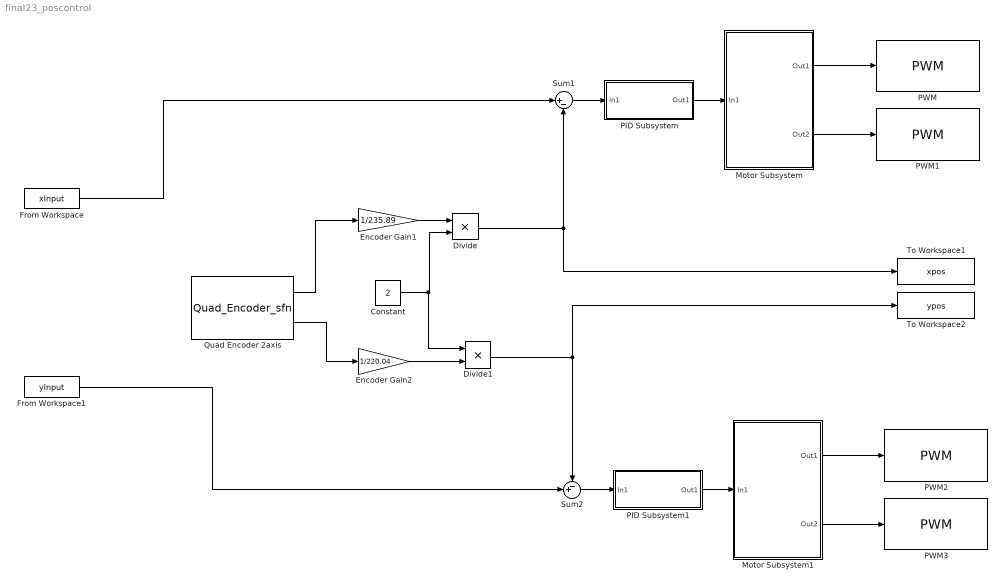
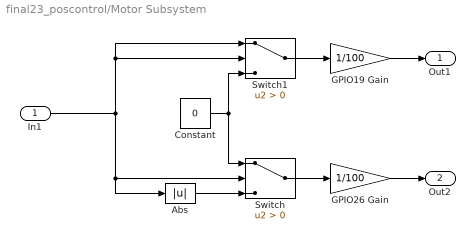
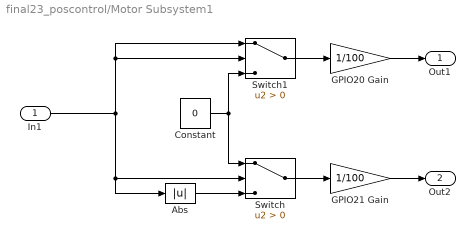
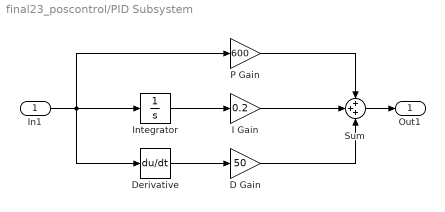
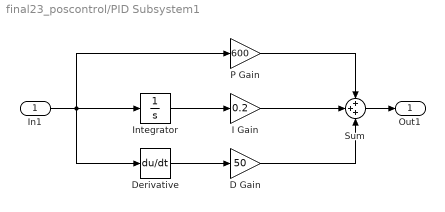
/*
 * final23_poscontrol.c
 *
 * Academic License - for use in teaching, academic research, and meeting
 * course requirements at degree granting institutions only.  Not for
 * government, commercial, or other organizational use.
 *
 * Code generation for model "final23_poscontrol".
 *
 * Model version              : 1.39
 * Simulink Coder version : 9.5 (R2021a) 14-Nov-2020
 * C source code generated on : Sat Dec 16 01:13:02 2023
 *
 * Target selection: ert.tlc
 * Note: GRT includes extra infrastructure and instrumentation for prototyping
 * Embedded hardware selection: ARM Compatible->ARM Cortex
 * Code generation objectives: Unspecified
 * Validation result: Not run
 */

#include "final23_poscontrol.h"
#include "final23_poscontrol_private.h"

/* Block signals (default storage) */
B_final23_poscontrol_T final23_poscontrol_B;

/* Continuous states */
X_final23_poscontrol_T final23_poscontrol_X;

/* Block states (default storage) */
DW_final23_poscontrol_T final23_poscontrol_DW;

/* Real-time model */
static RT_MODEL_final23_poscontrol_T final23_poscontrol_M_;
RT_MODEL_final23_poscontrol_T *const final23_poscontrol_M =
  &final23_poscontrol_M_;

/*
 * This function updates continuous states using the ODE3 fixed-step
 * solver algorithm
 */
static void rt_ertODEUpdateContinuousStates(RTWSolverInfo *si )
{
  /* Solver Matrices */
  static const real_T rt_ODE3_A[3] = {
    1.0/2.0, 3.0/4.0, 1.0
  };

  static const real_T rt_ODE3_B[3][3] = {
    { 1.0/2.0, 0.0, 0.0 },

    { 0.0, 3.0/4.0, 0.0 },

    { 2.0/9.0, 1.0/3.0, 4.0/9.0 }
  };

  time_T t = rtsiGetT(si);
  time_T tnew = rtsiGetSolverStopTime(si);
  time_T h = rtsiGetStepSize(si);
  real_T *x = rtsiGetContStates(si);
  ODE3_IntgData *id = (ODE3_IntgData *)rtsiGetSolverData(si);
  real_T *y = id->y;
  real_T *f0 = id->f[0];
  real_T *f1 = id->f[1];
  real_T *f2 = id->f[2];
  real_T hB[3];
  int_T i;
  int_T nXc = 2;
  rtsiSetSimTimeStep(si,MINOR_TIME_STEP);

  /* Save the state values at time t in y, we'll use x as ynew. */
  (void) memcpy(y, x,
                (uint_T)nXc*sizeof(real_T));

  /* Assumes that rtsiSetT and ModelOutputs are up-to-date */
  /* f0 = f(t,y) */
  rtsiSetdX(si, f0);
  final23_poscontrol_derivatives();

  /* f(:,2) = feval(odefile, t + hA(1), y + f*hB(:,1), args(:)(*)); */
  hB[0] = h * rt_ODE3_B[0][0];
  for (i = 0; i < nXc; i++) {
    x[i] = y[i] + (f0[i]*hB[0]);
  }

  rtsiSetT(si, t + h*rt_ODE3_A[0]);
  rtsiSetdX(si, f1);
  final23_poscontrol_step();
  final23_poscontrol_derivatives();

  /* f(:,3) = feval(odefile, t + hA(2), y + f*hB(:,2), args(:)(*)); */
  for (i = 0; i <= 1; i++) {
    hB[i] = h * rt_ODE3_B[1][i];
  }

  for (i = 0; i < nXc; i++) {
    x[i] = y[i] + (f0[i]*hB[0] + f1[i]*hB[1]);
  }

  rtsiSetT(si, t + h*rt_ODE3_A[1]);
  rtsiSetdX(si, f2);
  final23_poscontrol_step();
  final23_poscontrol_derivatives();

  /* tnew = t + hA(3);
     ynew = y + f*hB(:,3); */
  for (i = 0; i <= 2; i++) {
    hB[i] = h * rt_ODE3_B[2][i];
  }

  for (i = 0; i < nXc; i++) {
    x[i] = y[i] + (f0[i]*hB[0] + f1[i]*hB[1] + f2[i]*hB[2]);
  }

  rtsiSetT(si, tnew);
  rtsiSetSimTimeStep(si,MAJOR_TIME_STEP);
}

/* Model step function */
void final23_poscontrol_step(void)
{
  if (rtmIsMajorTimeStep(final23_poscontrol_M)) {
    /* set solver stop time */
    if (!(final23_poscontrol_M->Timing.clockTick0+1)) {
      rtsiSetSolverStopTime(&final23_poscontrol_M->solverInfo,
                            ((final23_poscontrol_M->Timing.clockTickH0 + 1) *
        final23_poscontrol_M->Timing.stepSize0 * 4294967296.0));
    } else {
      rtsiSetSolverStopTime(&final23_poscontrol_M->solverInfo,
                            ((final23_poscontrol_M->Timing.clockTick0 + 1) *
        final23_poscontrol_M->Timing.stepSize0 +
        final23_poscontrol_M->Timing.clockTickH0 *
        final23_poscontrol_M->Timing.stepSize0 * 4294967296.0));
    }
  }                                    /* end MajorTimeStep */

  /* Update absolute time of base rate at minor time step */
  if (rtmIsMinorTimeStep(final23_poscontrol_M)) {
    final23_poscontrol_M->Timing.t[0] = rtsiGetT
      (&final23_poscontrol_M->solverInfo);
  }

  {
    real_T rtb_Sum;
    real_T rtb_Sum_p;
    real_T rtb_Switch;
    real_T *lastU;
    if (rtmIsMajorTimeStep(final23_poscontrol_M)) {
      /* FromWorkspace: '<Root>/From Workspace' */
      {
        real_T *pDataValues = (real_T *)
          final23_poscontrol_DW.FromWorkspace_PWORK.DataPtr;
        real_T *pTimeValues = (real_T *)
          final23_poscontrol_DW.FromWorkspace_PWORK.TimePtr;
        int_T currTimeIndex =
          final23_poscontrol_DW.FromWorkspace_IWORK.PrevIndex;
        real_T t = (((final23_poscontrol_M->Timing.clockTick1+
                      final23_poscontrol_M->Timing.clockTickH1* 4294967296.0)) *
                    0.001);

        /* Get index */
        if (t <= pTimeValues[0]) {
          currTimeIndex = 0;
        } else if (t >= pTimeValues[45473]) {
          currTimeIndex = 45472;
        } else {
          if (t < pTimeValues[currTimeIndex]) {
            while (t < pTimeValues[currTimeIndex]) {
              currTimeIndex--;
            }
          } else {
            while (t >= pTimeValues[currTimeIndex + 1]) {
              currTimeIndex++;
            }
          }
        }

        final23_poscontrol_DW.FromWorkspace_IWORK.PrevIndex = currTimeIndex;

        /* Post output */
        {
          real_T t1 = pTimeValues[currTimeIndex];
          real_T t2 = pTimeValues[currTimeIndex + 1];
          if (t1 == t2) {
            if (t < t1) {
              final23_poscontrol_B.FromWorkspace = pDataValues[currTimeIndex];
            } else {
              final23_poscontrol_B.FromWorkspace = pDataValues[currTimeIndex + 1];
            }
          } else {
            real_T f1 = (t2 - t) / (t2 - t1);
            real_T f2 = 1.0 - f1;
            real_T d1;
            real_T d2;
            int_T TimeIndex = currTimeIndex;
            d1 = pDataValues[TimeIndex];
            d2 = pDataValues[TimeIndex + 1];
            final23_poscontrol_B.FromWorkspace = (real_T) rtInterpolate(d1, d2,
              f1, f2);
            pDataValues += 45474;
          }
        }
      }
    }

    /* S-Function (Quad_Encoder_sfn): '<Root>/Quad Encoder 2axis' */
    Quad_Encoder_sfn_Outputs_wrapper(&final23_poscontrol_B.QuadEncoder2axis_o1,
      &final23_poscontrol_B.QuadEncoder2axis_o2,
      &final23_poscontrol_DW.QuadEncoder2axis_DSTATE,
      &final23_poscontrol_P.QuadEncoder2axis_P1, 1,
      &final23_poscontrol_P.QuadEncoder2axis_P2, 1,
      &final23_poscontrol_P.QuadEncoder2axis_P3, 1,
      &final23_poscontrol_P.QuadEncoder2axis_P4, 1,
      &final23_poscontrol_P.QuadEncoder2axis_P5, 1,
      &final23_poscontrol_P.QuadEncoder2axis_P6, 1);

    /* Gain: '<Root>/Encoder Gain1' */
    final23_poscontrol_B.EncoderGain1 = (int64_T)
      final23_poscontrol_P.EncoderGain1_Gain *
      final23_poscontrol_B.QuadEncoder2axis_o1;

    /* Product: '<Root>/Divide' incorporates:
     *  Constant: '<Root>/Constant'
     *  Gain: '<Root>/Encoder Gain1'
     */
    final23_poscontrol_B.Divide = (real_T)final23_poscontrol_B.EncoderGain1 *
      3.637978807091713E-12 * final23_poscontrol_P.Constant_Value;

    /* Sum: '<Root>/Sum1' */
    final23_poscontrol_B.Sum1 = final23_poscontrol_B.FromWorkspace -
      final23_poscontrol_B.Divide;

    /* Derivative: '<S3>/Derivative' incorporates:
     *  Derivative: '<S4>/Derivative'
     */
    rtb_Sum_p = final23_poscontrol_M->Timing.t[0];
    if ((final23_poscontrol_DW.TimeStampA >= rtb_Sum_p) &&
        (final23_poscontrol_DW.TimeStampB >= rtb_Sum_p)) {
      rtb_Switch = 0.0;
    } else {
      rtb_Switch = final23_poscontrol_DW.TimeStampA;
      lastU = &final23_poscontrol_DW.LastUAtTimeA;
      if (final23_poscontrol_DW.TimeStampA < final23_poscontrol_DW.TimeStampB) {
        if (final23_poscontrol_DW.TimeStampB < rtb_Sum_p) {
          rtb_Switch = final23_poscontrol_DW.TimeStampB;
          lastU = &final23_poscontrol_DW.LastUAtTimeB;
        }
      } else if (final23_poscontrol_DW.TimeStampA >= rtb_Sum_p) {
        rtb_Switch = final23_poscontrol_DW.TimeStampB;
        lastU = &final23_poscontrol_DW.LastUAtTimeB;
      }

      rtb_Switch = (final23_poscontrol_B.Sum1 - *lastU) / (rtb_Sum_p -
        rtb_Switch);
    }

    /* End of Derivative: '<S3>/Derivative' */

    /* Sum: '<S3>/Sum' incorporates:
     *  Gain: '<S3>/D Gain'
     *  Gain: '<S3>/I Gain'
     *  Gain: '<S3>/P Gain'
     *  Integrator: '<S3>/Integrator'
     */
    rtb_Sum = (final23_poscontrol_P.PGain_Gain * final23_poscontrol_B.Sum1 +
               final23_poscontrol_P.IGain_Gain *
               final23_poscontrol_X.Integrator_CSTATE) +
      final23_poscontrol_P.DGain_Gain * rtb_Switch;

    /* Switch: '<S1>/Switch1' incorporates:
     *  Constant: '<S1>/Constant'
     */
    if (rtb_Sum > final23_poscontrol_P.Switch1_Threshold) {
      rtb_Switch = rtb_Sum;
    } else {
      rtb_Switch = final23_poscontrol_P.Constant_Value_d;
    }

    /* End of Switch: '<S1>/Switch1' */

    /* Gain: '<S1>/GPIO19 Gain' */
    rtb_Switch *= final23_poscontrol_P.GPIO19Gain_Gain;

    /* MATLABSystem: '<Root>/PWM' */
    if (!(rtb_Switch < 1.0)) {
      rtb_Switch = 1.0;
    }

    if (!(rtb_Switch > 0.0)) {
      rtb_Switch = 0.0;
    }

    EXT_PWMBlock_setDutyCycle(final23_poscontrol_DW.obj_g.PinNumber, rtb_Switch);

    /* End of MATLABSystem: '<Root>/PWM' */

    /* Switch: '<S1>/Switch' incorporates:
     *  Abs: '<S1>/Abs'
     *  Constant: '<S1>/Constant'
     */
    if (rtb_Sum > final23_poscontrol_P.Switch_Threshold) {
      rtb_Sum = final23_poscontrol_P.Constant_Value_d;
    } else {
      rtb_Sum = fabs(rtb_Sum);
    }

    /* End of Switch: '<S1>/Switch' */

    /* Gain: '<S1>/GPIO26 Gain' */
    rtb_Switch = final23_poscontrol_P.GPIO26Gain_Gain * rtb_Sum;

    /* MATLABSystem: '<Root>/PWM1' */
    if (!(rtb_Switch < 1.0)) {
      rtb_Switch = 1.0;
    }

    if (!(rtb_Switch > 0.0)) {
      rtb_Switch = 0.0;
    }

    EXT_PWMBlock_setDutyCycle(final23_poscontrol_DW.obj_e.PinNumber, rtb_Switch);

    /* End of MATLABSystem: '<Root>/PWM1' */
    if (rtmIsMajorTimeStep(final23_poscontrol_M)) {
    }

    /* Gain: '<Root>/Encoder Gain2' */
    final23_poscontrol_B.EncoderGain2 = (int64_T)
      final23_poscontrol_P.EncoderGain2_Gain *
      final23_poscontrol_B.QuadEncoder2axis_o2;

    /* Product: '<Root>/Divide1' incorporates:
     *  Constant: '<Root>/Constant'
     *  Gain: '<Root>/Encoder Gain2'
     */
    final23_poscontrol_B.Divide1 = (real_T)final23_poscontrol_B.EncoderGain2 *
      3.637978807091713E-12 * final23_poscontrol_P.Constant_Value;
    if (rtmIsMajorTimeStep(final23_poscontrol_M)) {
      /* FromWorkspace: '<Root>/From Workspace1' */
      {
        real_T *pDataValues = (real_T *)
          final23_poscontrol_DW.FromWorkspace1_PWORK.DataPtr;
        real_T *pTimeValues = (real_T *)
          final23_poscontrol_DW.FromWorkspace1_PWORK.TimePtr;
        int_T currTimeIndex =
          final23_poscontrol_DW.FromWorkspace1_IWORK.PrevIndex;
        real_T t = (((final23_poscontrol_M->Timing.clockTick1+
                      final23_poscontrol_M->Timing.clockTickH1* 4294967296.0)) *
                    0.001);

        /* Get index */
        if (t <= pTimeValues[0]) {
          currTimeIndex = 0;
        } else if (t >= pTimeValues[45473]) {
          currTimeIndex = 45472;
        } else {
          if (t < pTimeValues[currTimeIndex]) {
            while (t < pTimeValues[currTimeIndex]) {
              currTimeIndex--;
            }
          } else {
            while (t >= pTimeValues[currTimeIndex + 1]) {
              currTimeIndex++;
            }
          }
        }

        final23_poscontrol_DW.FromWorkspace1_IWORK.PrevIndex = currTimeIndex;

        /* Post output */
        {
          real_T t1 = pTimeValues[currTimeIndex];
          real_T t2 = pTimeValues[currTimeIndex + 1];
          if (t1 == t2) {
            if (t < t1) {
              final23_poscontrol_B.FromWorkspace1 = pDataValues[currTimeIndex];
            } else {
              final23_poscontrol_B.FromWorkspace1 = pDataValues[currTimeIndex +
                1];
            }
          } else {
            real_T f1 = (t2 - t) / (t2 - t1);
            real_T f2 = 1.0 - f1;
            real_T d1;
            real_T d2;
            int_T TimeIndex = currTimeIndex;
            d1 = pDataValues[TimeIndex];
            d2 = pDataValues[TimeIndex + 1];
            final23_poscontrol_B.FromWorkspace1 = (real_T) rtInterpolate(d1, d2,
              f1, f2);
            pDataValues += 45474;
          }
        }
      }
    }

    /* Sum: '<Root>/Sum2' */
    final23_poscontrol_B.Sum2 = final23_poscontrol_B.FromWorkspace1 -
      final23_poscontrol_B.Divide1;

    /* Derivative: '<S4>/Derivative' */
    if ((final23_poscontrol_DW.TimeStampA_k >= rtb_Sum_p) &&
        (final23_poscontrol_DW.TimeStampB_k >= rtb_Sum_p)) {
      rtb_Switch = 0.0;
    } else {
      rtb_Switch = final23_poscontrol_DW.TimeStampA_k;
      lastU = &final23_poscontrol_DW.LastUAtTimeA_o;
      if (final23_poscontrol_DW.TimeStampA_k <
          final23_poscontrol_DW.TimeStampB_k) {
        if (final23_poscontrol_DW.TimeStampB_k < rtb_Sum_p) {
          rtb_Switch = final23_poscontrol_DW.TimeStampB_k;
          lastU = &final23_poscontrol_DW.LastUAtTimeB_n;
        }
      } else if (final23_poscontrol_DW.TimeStampA_k >= rtb_Sum_p) {
        rtb_Switch = final23_poscontrol_DW.TimeStampB_k;
        lastU = &final23_poscontrol_DW.LastUAtTimeB_n;
      }

      rtb_Switch = (final23_poscontrol_B.Sum2 - *lastU) / (rtb_Sum_p -
        rtb_Switch);
    }

    /* Sum: '<S4>/Sum' incorporates:
     *  Gain: '<S4>/D Gain'
     *  Gain: '<S4>/I Gain'
     *  Gain: '<S4>/P Gain'
     *  Integrator: '<S4>/Integrator'
     */
    rtb_Sum_p = (final23_poscontrol_P.PGain_Gain_b * final23_poscontrol_B.Sum2 +
                 final23_poscontrol_P.IGain_Gain_d *
                 final23_poscontrol_X.Integrator_CSTATE_l) +
      final23_poscontrol_P.DGain_Gain_k * rtb_Switch;

    /* Switch: '<S2>/Switch1' incorporates:
     *  Constant: '<S2>/Constant'
     */
    if (rtb_Sum_p > final23_poscontrol_P.Switch1_Threshold_c) {
      rtb_Switch = rtb_Sum_p;
    } else {
      rtb_Switch = final23_poscontrol_P.Constant_Value_e;
    }

    /* End of Switch: '<S2>/Switch1' */

    /* Gain: '<S2>/GPIO20 Gain' */
    rtb_Switch *= final23_poscontrol_P.GPIO20Gain_Gain;

    /* MATLABSystem: '<Root>/PWM2' */
    if (!(rtb_Switch < 1.0)) {
      rtb_Switch = 1.0;
    }

    if (!(rtb_Switch > 0.0)) {
      rtb_Switch = 0.0;
    }

    EXT_PWMBlock_setDutyCycle(final23_poscontrol_DW.obj_p.PinNumber, rtb_Switch);

    /* End of MATLABSystem: '<Root>/PWM2' */

    /* Switch: '<S2>/Switch' incorporates:
     *  Abs: '<S2>/Abs'
     *  Constant: '<S2>/Constant'
     */
    if (rtb_Sum_p > final23_poscontrol_P.Switch_Threshold_m) {
      rtb_Sum_p = final23_poscontrol_P.Constant_Value_e;
    } else {
      rtb_Sum_p = fabs(rtb_Sum_p);
    }

    /* End of Switch: '<S2>/Switch' */

    /* Gain: '<S2>/GPIO21 Gain' */
    rtb_Switch = final23_poscontrol_P.GPIO21Gain_Gain * rtb_Sum_p;

    /* MATLABSystem: '<Root>/PWM3' */
    if (!(rtb_Switch < 1.0)) {
      rtb_Switch = 1.0;
    }

    if (!(rtb_Switch > 0.0)) {
      rtb_Switch = 0.0;
    }

    EXT_PWMBlock_setDutyCycle(final23_poscontrol_DW.obj.PinNumber, rtb_Switch);

    /* End of MATLABSystem: '<Root>/PWM3' */
    if (rtmIsMajorTimeStep(final23_poscontrol_M)) {
    }
  }

  if (rtmIsMajorTimeStep(final23_poscontrol_M)) {
    real_T *lastU;

    /* Update for S-Function (Quad_Encoder_sfn): '<Root>/Quad Encoder 2axis' */

    /* S-Function "Quad_Encoder_sfn_wrapper" Block: <Root>/Quad Encoder 2axis */
    Quad_Encoder_sfn_Update_wrapper(&final23_poscontrol_B.QuadEncoder2axis_o1,
      &final23_poscontrol_B.QuadEncoder2axis_o2,
      &final23_poscontrol_DW.QuadEncoder2axis_DSTATE,
      &final23_poscontrol_P.QuadEncoder2axis_P1, 1,
      &final23_poscontrol_P.QuadEncoder2axis_P2, 1,
      &final23_poscontrol_P.QuadEncoder2axis_P3, 1,
      &final23_poscontrol_P.QuadEncoder2axis_P4, 1,
      &final23_poscontrol_P.QuadEncoder2axis_P5, 1,
      &final23_poscontrol_P.QuadEncoder2axis_P6, 1);

    /* Update for Derivative: '<S3>/Derivative' */
    if (final23_poscontrol_DW.TimeStampA == (rtInf)) {
      final23_poscontrol_DW.TimeStampA = final23_poscontrol_M->Timing.t[0];
      lastU = &final23_poscontrol_DW.LastUAtTimeA;
    } else if (final23_poscontrol_DW.TimeStampB == (rtInf)) {
      final23_poscontrol_DW.TimeStampB = final23_poscontrol_M->Timing.t[0];
      lastU = &final23_poscontrol_DW.LastUAtTimeB;
    } else if (final23_poscontrol_DW.TimeStampA <
               final23_poscontrol_DW.TimeStampB) {
      final23_poscontrol_DW.TimeStampA = final23_poscontrol_M->Timing.t[0];
      lastU = &final23_poscontrol_DW.LastUAtTimeA;
    } else {
      final23_poscontrol_DW.TimeStampB = final23_poscontrol_M->Timing.t[0];
      lastU = &final23_poscontrol_DW.LastUAtTimeB;
    }

    *lastU = final23_poscontrol_B.Sum1;

    /* End of Update for Derivative: '<S3>/Derivative' */

    /* Update for Derivative: '<S4>/Derivative' */
    if (final23_poscontrol_DW.TimeStampA_k == (rtInf)) {
      final23_poscontrol_DW.TimeStampA_k = final23_poscontrol_M->Timing.t[0];
      lastU = &final23_poscontrol_DW.LastUAtTimeA_o;
    } else if (final23_poscontrol_DW.TimeStampB_k == (rtInf)) {
      final23_poscontrol_DW.TimeStampB_k = final23_poscontrol_M->Timing.t[0];
      lastU = &final23_poscontrol_DW.LastUAtTimeB_n;
    } else if (final23_poscontrol_DW.TimeStampA_k <
               final23_poscontrol_DW.TimeStampB_k) {
      final23_poscontrol_DW.TimeStampA_k = final23_poscontrol_M->Timing.t[0];
      lastU = &final23_poscontrol_DW.LastUAtTimeA_o;
    } else {
      final23_poscontrol_DW.TimeStampB_k = final23_poscontrol_M->Timing.t[0];
      lastU = &final23_poscontrol_DW.LastUAtTimeB_n;
    }

    *lastU = final23_poscontrol_B.Sum2;

    /* End of Update for Derivative: '<S4>/Derivative' */

    /* External mode */
    rtExtModeUploadCheckTrigger(2);

    {                                  /* Sample time: [0.0s, 0.0s] */
      rtExtModeUpload(0, (real_T)final23_poscontrol_M->Timing.t[0]);
    }

    if (rtmIsMajorTimeStep(final23_poscontrol_M)) {/* Sample time: [0.001s, 0.0s] */
      rtExtModeUpload(1, (real_T)(((final23_poscontrol_M->Timing.clockTick1+
        final23_poscontrol_M->Timing.clockTickH1* 4294967296.0)) * 0.001));
    }
  }                                    /* end MajorTimeStep */

  if (rtmIsMajorTimeStep(final23_poscontrol_M)) {
    /* signal main to stop simulation */
    {                                  /* Sample time: [0.0s, 0.0s] */
      if ((rtmGetTFinal(final23_poscontrol_M)!=-1) &&
          !((rtmGetTFinal(final23_poscontrol_M)-
             (((final23_poscontrol_M->Timing.clockTick1+
                final23_poscontrol_M->Timing.clockTickH1* 4294967296.0)) * 0.001))
            > (((final23_poscontrol_M->Timing.clockTick1+
                 final23_poscontrol_M->Timing.clockTickH1* 4294967296.0)) *
               0.001) * (DBL_EPSILON))) {
        rtmSetErrorStatus(final23_poscontrol_M, "Simulation finished");
      }

      if (rtmGetStopRequested(final23_poscontrol_M)) {
        rtmSetErrorStatus(final23_poscontrol_M, "Simulation finished");
      }
    }

    rt_ertODEUpdateContinuousStates(&final23_poscontrol_M->solverInfo);

    /* Update absolute time for base rate */
    /* The "clockTick0" counts the number of times the code of this task has
     * been executed. The absolute time is the multiplication of "clockTick0"
     * and "Timing.stepSize0". Size of "clockTick0" ensures timer will not
     * overflow during the application lifespan selected.
     * Timer of this task consists of two 32 bit unsigned integers.
     * The two integers represent the low bits Timing.clockTick0 and the high bits
     * Timing.clockTickH0. When the low bit overflows to 0, the high bits increment.
     */
    if (!(++final23_poscontrol_M->Timing.clockTick0)) {
      ++final23_poscontrol_M->Timing.clockTickH0;
    }

    final23_poscontrol_M->Timing.t[0] = rtsiGetSolverStopTime
      (&final23_poscontrol_M->solverInfo);

    {
      /* Update absolute timer for sample time: [0.001s, 0.0s] */
      /* The "clockTick1" counts the number of times the code of this task has
       * been executed. The resolution of this integer timer is 0.001, which is the step size
       * of the task. Size of "clockTick1" ensures timer will not overflow during the
       * application lifespan selected.
       * Timer of this task consists of two 32 bit unsigned integers.
       * The two integers represent the low bits Timing.clockTick1 and the high bits
       * Timing.clockTickH1. When the low bit overflows to 0, the high bits increment.
       */
      final23_poscontrol_M->Timing.clockTick1++;
      if (!final23_poscontrol_M->Timing.clockTick1) {
        final23_poscontrol_M->Timing.clockTickH1++;
      }
    }
  }                                    /* end MajorTimeStep */
}
